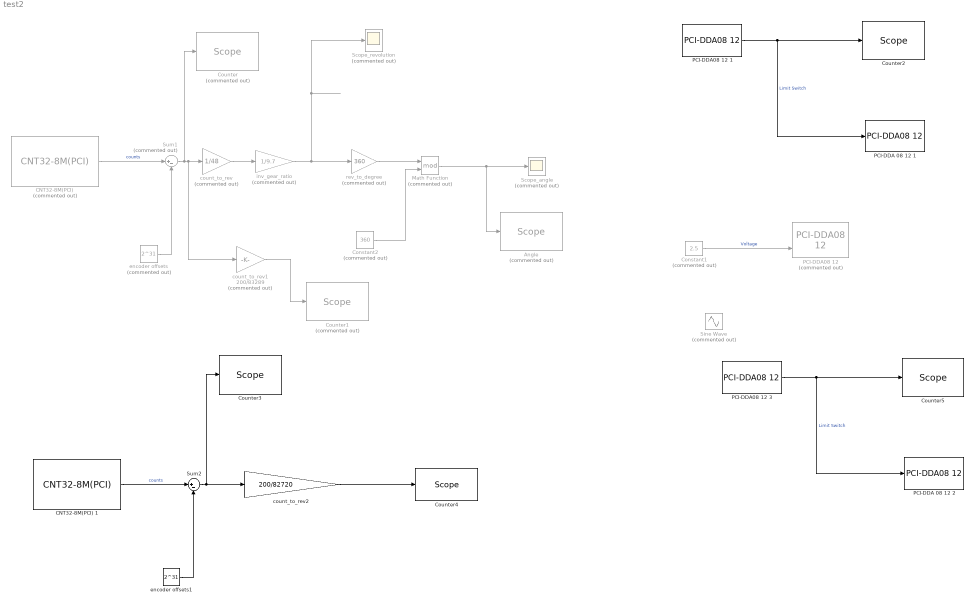
/*
 * test2.c
 *
 * Academic License - for use in teaching, academic research, and meeting
 * course requirements at degree granting institutions only.  Not for
 * government, commercial, or other organizational use.
 *
 * Code generation for model "test2".
 *
 * Model version              : 1.71
 * Simulink Coder version : 8.10 (R2016a) 10-Feb-2016
 * C source code generated on : Fri Dec 16 02:58:05 2016
 *
 * Target selection: slrt.tlc
 * Note: GRT includes extra infrastructure and instrumentation for prototyping
 * Embedded hardware selection: Generic->32-bit x86 compatible
 * Code generation objectives: Unspecified
 * Validation result: Not run
 */

#include "rt_logging_mmi.h"
#include "test2_capi.h"
#include "test2.h"
#include "test2_private.h"

/* Block signals (auto storage) */
B_test2_T test2_B;

/* Block states (auto storage) */
DW_test2_T test2_DW;

/* Real-time model */
RT_MODEL_test2_T test2_M_;
RT_MODEL_test2_T *const test2_M = &test2_M_;
static void rate_monotonic_scheduler(void);
time_T rt_SimUpdateDiscreteEvents(
  int_T rtmNumSampTimes, void *rtmTimingData, int_T *rtmSampleHitPtr, int_T
  *rtmPerTaskSampleHits )
{
  rtmSampleHitPtr[1] = rtmStepTask(test2_M, 1);
  UNUSED_PARAMETER(rtmNumSampTimes);
  UNUSED_PARAMETER(rtmTimingData);
  UNUSED_PARAMETER(rtmPerTaskSampleHits);
  return(-1);
}

/*
 *   This function updates active task flag for each subrate
 * and rate transition flags for tasks that exchange data.
 * The function assumes rate-monotonic multitasking scheduler.
 * The function must be called at model base rate so that
 * the generated code self-manages all its subrates and rate
 * transition flags.
 */
static void rate_monotonic_scheduler(void)
{
  /* Compute which subrates run during the next base time step.  Subrates
   * are an integer multiple of the base rate counter.  Therefore, the subtask
   * counter is reset when it reaches its limit (zero means run).
   */
  (test2_M->Timing.TaskCounters.TID[1])++;
  if ((test2_M->Timing.TaskCounters.TID[1]) > 9) {/* Sample time: [0.001s, 0.0s] */
    test2_M->Timing.TaskCounters.TID[1] = 0;
  }
}

/* Model output function for TID0 */
static void test2_output0(void)        /* Sample time: [0.0001s, 0.0s] */
{
  {                                    /* Sample time: [0.0001s, 0.0s] */
    rate_monotonic_scheduler();
  }

  /* ok to acquire for <S5>/S-Function */
  test2_DW.SFunction_IWORK.AcquireOK = 1;

  /* ok to acquire for <S6>/S-Function */
  test2_DW.SFunction_IWORK_j.AcquireOK = 1;

  /* Level2 S-Function Block: '<Root>/CNT32-8M(PCI) 1' (encconteccnt328mpci) */
  {
    SimStruct *rts = test2_M->childSfunctions[0];
    sfcnOutputs(rts, 0);
  }

  /* Sum: '<Root>/Sum2' incorporates:
   *  Constant: '<Root>/encoder offsets1'
   */
  test2_B.Sum2 = test2_B.counts - test2_P.encoderoffsets1_Value;

  /* Gain: '<Root>/count_to_rev2' */
  test2_B.count_to_rev2 = test2_P.count_to_rev2_Gain * test2_B.Sum2;
}

/* Model update function for TID0 */
static void test2_update0(void)        /* Sample time: [0.0001s, 0.0s] */
{
  /* Update absolute time */
  /* The "clockTick0" counts the number of times the code of this task has
   * been executed. The absolute time is the multiplication of "clockTick0"
   * and "Timing.stepSize0". Size of "clockTick0" ensures timer will not
   * overflow during the application lifespan selected.
   * Timer of this task consists of two 32 bit unsigned integers.
   * The two integers represent the low bits Timing.clockTick0 and the high bits
   * Timing.clockTickH0. When the low bit overflows to 0, the high bits increment.
   */
  if (!(++test2_M->Timing.clockTick0)) {
    ++test2_M->Timing.clockTickH0;
  }

  test2_M->Timing.t[0] = test2_M->Timing.clockTick0 * test2_M->Timing.stepSize0
    + test2_M->Timing.clockTickH0 * test2_M->Timing.stepSize0 * 4294967296.0;
}

/* Model output function for TID1 */
static void test2_output1(void)        /* Sample time: [0.001s, 0.0s] */
{
  /* ok to acquire for <S4>/S-Function */
  test2_DW.SFunction_IWORK_j2.AcquireOK = 1;

  /* Level2 S-Function Block: '<Root>/PCI-DDA08 12 1' (dipci8255) */
  {
    SimStruct *rts = test2_M->childSfunctions[1];
    sfcnOutputs(rts, 1);
  }

  /* Level2 S-Function Block: '<Root>/PCI-DDA 08 12 1' (dopci8255) */
  {
    SimStruct *rts = test2_M->childSfunctions[2];
    sfcnOutputs(rts, 1);
  }

  /* ok to acquire for <S7>/S-Function */
  test2_DW.SFunction_IWORK_i.AcquireOK = 1;

  /* Level2 S-Function Block: '<Root>/PCI-DDA08 12 3' (dipci8255) */
  {
    SimStruct *rts = test2_M->childSfunctions[3];
    sfcnOutputs(rts, 1);
  }

  /* Level2 S-Function Block: '<Root>/PCI-DDA 08 12 2' (dopci8255) */
  {
    SimStruct *rts = test2_M->childSfunctions[4];
    sfcnOutputs(rts, 1);
  }
}

/* Model update function for TID1 */
static void test2_update1(void)        /* Sample time: [0.001s, 0.0s] */
{
  /* Update absolute time */
  /* The "clockTick1" counts the number of times the code of this task has
   * been executed. The absolute time is the multiplication of "clockTick1"
   * and "Timing.stepSize1". Size of "clockTick1" ensures timer will not
   * overflow during the application lifespan selected.
   * Timer of this task consists of two 32 bit unsigned integers.
   * The two integers represent the low bits Timing.clockTick1 and the high bits
   * Timing.clockTickH1. When the low bit overflows to 0, the high bits increment.
   */
  if (!(++test2_M->Timing.clockTick1)) {
    ++test2_M->Timing.clockTickH1;
  }

  test2_M->Timing.t[1] = test2_M->Timing.clockTick1 * test2_M->Timing.stepSize1
    + test2_M->Timing.clockTickH1 * test2_M->Timing.stepSize1 * 4294967296.0;
}

/* Model output wrapper function for compatibility with a static main program */
static void test2_output(int_T tid)
{
  switch (tid) {
   case 0 :
    test2_output0();
    break;

   case 1 :
    test2_output1();
    break;

   default :
    break;
  }
}

/* Model update wrapper function for compatibility with a static main program */
static void test2_update(int_T tid)
{
  switch (tid) {
   case 0 :
    test2_update0();
    break;

   case 1 :
    test2_update1();
    break;

   default :
    break;
  }
}
